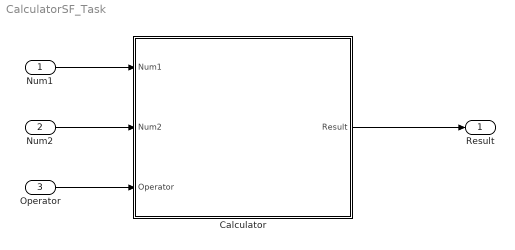
== stateflow chart CalculatorSF_Task/Calculator ==
  state add(N1,N2) [function]
    (default) -> (junction 24) : {Result = N1 + N2;}
  state Calculator
    (default) -> (junction 49) : % Calculation
    (junction 49) -> (junction 50) [order 1] : [Operator == 0]
    (junction 49) -> (junction 51) [order 2]
    (junction 50) -> (junction 58) : {add(Num1,Num2);}
    (junction 51) -> (junction 52) [order 1] : [Operator == 1]
    (junction 51) -> (junction 53) [order 2]
    (junction 52) -> (junction 57) : {sub(Num1,Num2);}
    (junction 53) -> (junction 54) [order 1] : [Operator == 2]
    (junction 53) -> (junction 55) [order 2] : {divide(Num1,Num2);}
    (junction 54) -> (junction 56) : {multiply(Num1,Num2);}
    (junction 56) -> (junction 55)
    (junction 57) -> (junction 56)
    (junction 58) -> (junction 57)
    (junction 55) -> (junction 59)
  state sub(N1,N2) [function]
    (default) -> (junction 5) : {Result = N1 - N2;}
  state multiply(N1,N2) [function]
    (default) -> (junction 8) : {Result = N1 * N2;}
  state divide(N1,N2) [function]
    (default) -> (junction 14)
    (junction 14) -> (junction 61) [order 1] : [N2 == 0]
    (junction 61) -> (junction 65) : {Result = -1;}
    (junction 14) -> (junction 65) [order 2] : {Result = N1 / N2;}
  (default) -> Calculator
  data: N1 function_input; N2 function_input; N1 function_input; N2 function_input; N1 function_input; N2 function_input; N1 function_input; N2 function_input; Num2 input; Num1 input; Operator input double; Result output

/*
 * File: CalculatorSF_Task.c
 *
 * Code generated for Simulink model 'CalculatorSF_Task'.
 *
 * Model version                  : 1.4
 * Simulink Coder version         : 9.5 (R2021a) 14-Nov-2020
 * C/C++ source code generated on : Mon Feb 12 17:01:47 2024
 *
 * Target selection: ert.tlc
 * Embedded hardware selection: Intel->x86-64 (Windows64)
 * Code generation objectives: Unspecified
 * Validation result: Not run
 */

#include "CalculatorSF_Task.h"
#include "CalculatorSF_Task_private.h"

/* Block states (default storage) */
DW_CalculatorSF_Task_T CalculatorSF_Task_DW;

/* External inputs (root inport signals with default storage) */
ExtU_CalculatorSF_Task_T CalculatorSF_Task_U;

/* External outputs (root outports fed by signals with default storage) */
ExtY_CalculatorSF_Task_T CalculatorSF_Task_Y;

/* Real-time model */
static RT_MODEL_CalculatorSF_Task_T CalculatorSF_Task_M_;
RT_MODEL_CalculatorSF_Task_T *const CalculatorSF_Task_M = &CalculatorSF_Task_M_;

/* Model step function */
void CalculatorSF_Task_step(void)
{
  /* Chart: '<Root>/Calculator' incorporates:
   *  Inport: '<Root>/Num1'
   *  Inport: '<Root>/Num2'
   *  Inport: '<Root>/Operator'
   *  Outport: '<Root>/Result'
   */
  CalculatorSF_Task_Calculator(CalculatorSF_Task_U.Num2,
    CalculatorSF_Task_U.Num1, CalculatorSF_Task_U.Operator,
    &CalculatorSF_Task_Y.Result, &CalculatorSF_Task_DW.sf_Calculator);
}
